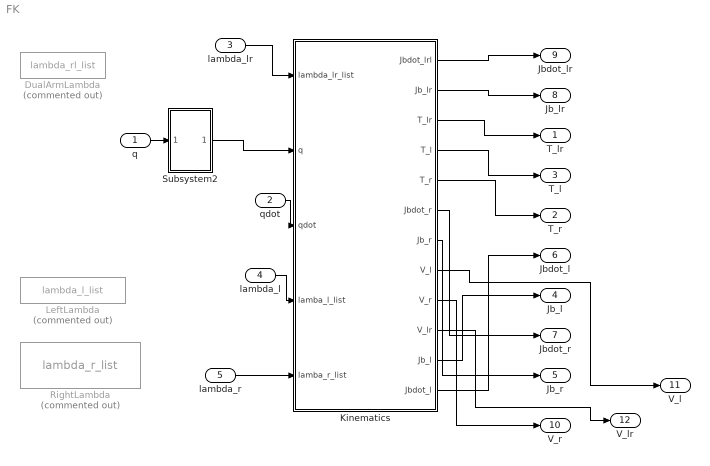
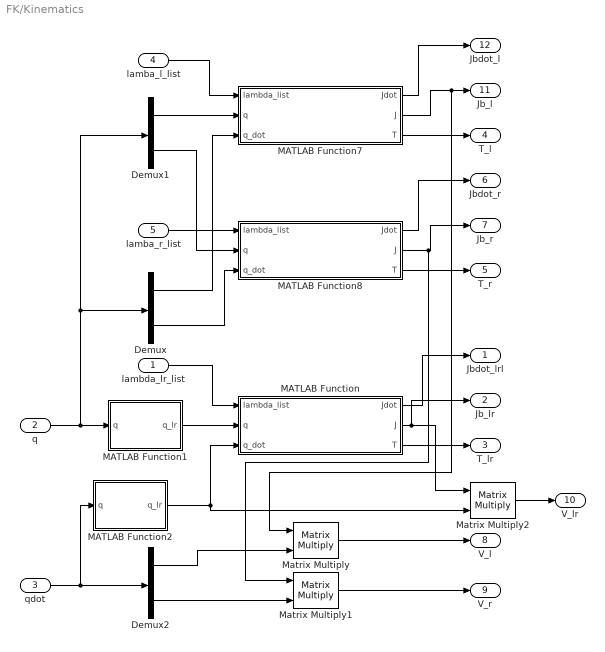
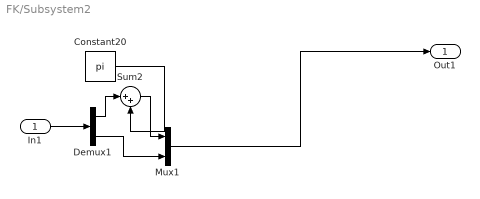
== matlab function FK/Kinematics/MATLAB Function1 ==
function q_lr = getQrel(q)
q_lr = zeros(12,1);
q_lr = [-flip(q(1:6));q(7:end)];

== matlab function FK/Kinematics/MATLAB Function ==
function [Jdot,J,T]=FKJacobian(lambda_list,q,q_dot)
    Ti = eye(4);
    [m,n]=size(lambda_list);
    lamda_z = [0,0,0,0,0,1]';
    ez = [0,0,1]';
    N = length(q);
    J = zeros(6,N);
    Jdot=zeros(6,N);
  
    Ti = exp6(lambda_list(:,end));
    [Ri,pi] = TransToRp(Ti);
    J(:,end)=[Ri'*VecToso3(ez)*pi;Ri'*ez];
    for i =N:-1:1
        Ti = exp6(lambda_list(:,i))*exp6(lamda_z*q(i))*Ti;
 
        [Ri,pi] = TransToRp(Ti);
        if i>1
            J(:,i-1)=[Ri'*VecToso3(ez)*pi;Ri'*ez];
        end

    end
    for i=1:1:N
        Ji = J(:,i);
        dJidt = zeros(6,1);
        for j=1:1:N
            Jj = J(:,j);
            aJiaqj = zeros(6,1);
            if(i<j) 
                aJiaqj = ad(Ji)*Jj;
            end
            dJidt = dJidt+aJiaqj*q_dot(j);
        end
        Jdot(:,i) = dJidt;
    end
    T = Ti;
end

== matlab function FK/Kinematics/MATLAB Function2 ==
function q_lr = getQrel(q)
q_lr = zeros(12,1);
q_lr = [-flip(q(1:6));q(7:end)];

== matlab function FK/Kinematics/MATLAB Function7 ==
function [Jdot,J,T]=FKJacobian(lambda_list,q,q_dot)
    Ti = eye(4);
    [m,n]=size(lambda_list);
    lamda_z = [0,0,0,0,0,1]';
    ez = [0,0,1]';
    N = length(q);
    J = zeros(6,N);
    Jdot=zeros(6,N);
  
    Ti = exp6(lambda_list(:,end));
    [Ri,pi] = TransToRp(Ti);
    J(:,end)=[Ri'*VecToso3(ez)*pi;Ri'*ez];
    for i =N:-1:1
        Ti = exp6(lambda_list(:,i))*exp6(lamda_z*q(i))*Ti;
 
        [Ri,pi] = TransToRp(Ti);
        if i>1
            J(:,i-1)=[Ri'*VecToso3(ez)*pi;Ri'*ez];
        end

    end
    for i=1:1:N
        Ji = J(:,i);
        dJidt = zeros(6,1);
        for j=1:1:N
            Jj = J(:,j);
            aJiaqj = zeros(6,1);
            if(i<j) 
                aJiaqj = ad(Ji)*Jj;
            end
            dJidt = dJidt+aJiaqj*q_dot(j);
        end
        Jdot(:,i) = dJidt;
    end
    T = Ti;
end

== matlab function FK/Kinematics/MATLAB Function8 ==
function [Jdot,J,T]=FKJacobian(lambda_list,q,q_dot)
    Ti = eye(4);
    [m,n]=size(lambda_list);
    lamda_z = [0,0,0,0,0,1]';
    ez = [0,0,1]';
    N = length(q);
    J = zeros(6,N);
    Jdot=zeros(6,N);
  
    Ti = exp6(lambda_list(:,end));
    [Ri,pi] = TransToRp(Ti);
    J(:,end)=[Ri'*VecToso3(ez)*pi;Ri'*ez];
    for i =N:-1:1
        Ti = exp6(lambda_list(:,i))*exp6(lamda_z*q(i))*Ti;
 
        [Ri,pi] = TransToRp(Ti);
        if i>1
            J(:,i-1)=[Ri'*VecToso3(ez)*pi;Ri'*ez];
        end

    end
    for i=1:1:N
        Ji = J(:,i);
        dJidt = zeros(6,1);
        for j=1:1:N
            Jj = J(:,j);
            aJiaqj = zeros(6,1);
            if(i<j) 
                aJiaqj = ad(Ji)*Jj;
            end
            dJidt = dJidt+aJiaqj*q_dot(j);
        end
        Jdot(:,i) = dJidt;
    end
    T = Ti;
end

/*
 * FK.c
 *
 * Academic License - for use in teaching, academic research, and meeting
 * course requirements at degree granting institutions only.  Not for
 * government, commercial, or other organizational use.
 *
 * Code generation for model "FK".
 *
 * Model version              : 2.4
 * Simulink Coder version : 24.2 (R2024b) 21-Jun-2024
 * C source code generated on : Sat May  3 16:25:47 2025
 *
 * Target selection: grt.tlc
 * Note: GRT includes extra infrastructure and instrumentation for prototyping
 * Embedded hardware selection: Intel->x86-64 (Linux 64)
 * Code generation objectives: Unspecified
 * Validation result: Not run
 */

#include "FK.h"
#include "rtwtypes.h"
#include <string.h>
#include <emmintrin.h>
#include "FK_private.h"
#include <math.h>

/* External inputs (root inport signals with default storage) */
ExtU_FK_T FK_U;

/* External outputs (root outports fed by signals with default storage) */
ExtY_FK_T FK_Y;

/* Real-time model */
static RT_MODEL_FK_T FK_M_;
RT_MODEL_FK_T *const FK_M = &FK_M_;

/* Forward declaration for local functions */
static real_T FK_norm(const real_T x[3]);

/* Function for MATLAB Function: '<S1>/MATLAB Function' */
static real_T FK_norm(const real_T x[3])
{
  real_T absxk;
  real_T scale;
  real_T t;
  real_T y;
  scale = 3.3121686421112381E-170;
  absxk = fabs(x[0]);
  if (absxk > 3.3121686421112381E-170) {
    y = 1.0;
    scale = absxk;
  } else {
    t = absxk / 3.3121686421112381E-170;
    y = t * t;
  }

  absxk = fabs(x[1]);
  if (absxk > scale) {
    t = scale / absxk;
    y = y * t * t + 1.0;
    scale = absxk;
  } else {
    t = absxk / scale;
    y += t * t;
  }

  absxk = fabs(x[2]);
  if (absxk > scale) {
    t = scale / absxk;
    y = y * t * t + 1.0;
    scale = absxk;
  } else {
    t = absxk / scale;
    y += t * t;
  }

  return scale * sqrt(y);
}

/* Function for MATLAB Function: '<S1>/MATLAB Function7' */
void FK_exp6(const real_T lambda[6], real_T T[16])
{
  __m128d tmp;
  real_T se3mat[16];
  real_T R[9];
  real_T omgmat_tmp[9];
  real_T se3mat_0[3];
  real_T a_tmp;
  real_T b_a;
  real_T b_a_tmp;
  real_T theta;
  int32_T R_tmp;
  int32_T T_tmp;
  int32_T i;
  int8_T b_I[9];
  static const int8_T d_a[9] = { 1, 0, 0, 0, 1, 0, 0, 0, 1 };

  se3mat[0] = 0.0;
  se3mat[4] = -lambda[5];
  se3mat[8] = lambda[4];
  se3mat[1] = lambda[5];
  se3mat[5] = 0.0;
  se3mat[9] = -lambda[3];
  se3mat[2] = -lambda[4];
  se3mat[6] = lambda[3];
  se3mat[10] = 0.0;
  se3mat[12] = lambda[0];
  se3mat[13] = lambda[1];
  se3mat[14] = lambda[2];
  se3mat[3] = 0.0;
  se3mat[7] = 0.0;
  se3mat[11] = 0.0;
  se3mat[15] = 0.0;
  se3mat_0[0] = lambda[3];
  se3mat_0[1] = lambda[4];
  se3mat_0[2] = lambda[5];
  theta = FK_norm(se3mat_0);
  if (fabs(theta) < 2.2204460492503131E-16) {
    for (i = 0; i < 9; i++) {
      b_I[i] = 0;
    }

    b_I[0] = 1;
    b_I[4] = 1;
    b_I[8] = 1;
    for (i = 0; i < 3; i++) {
      T_tmp = i << 2;
      T[T_tmp] = b_I[3 * i];
      T[T_tmp + 1] = b_I[3 * i + 1];
      T[T_tmp + 2] = b_I[3 * i + 2];
      T[i + 12] = se3mat[i + 12];
    }

    T[3] = 0.0;
    T[7] = 0.0;
    T[11] = 0.0;
    T[15] = 1.0;
  } else {
    for (i = 0; i < 3; i++) {
      T_tmp = i << 2;
      tmp = _mm_div_pd(_mm_loadu_pd(&se3mat[T_tmp]), _mm_set1_pd(theta));
      _mm_storeu_pd(&omgmat_tmp[3 * i], tmp);
      omgmat_tmp[3 * i + 2] = se3mat[T_tmp + 2] / theta;
    }

    a_tmp = cos(theta);
    b_a_tmp = sin(theta);
    b_a = theta - b_a_tmp;
    for (i = 0; i < 9; i++) {
      b_I[i] = 0;
    }

    b_I[0] = 1;
    b_I[4] = 1;
    b_I[8] = 1;
    for (i = 0; i < 3; i++) {
      for (T_tmp = 0; T_tmp < 3; T_tmp++) {
        R_tmp = 3 * T_tmp + i;
        R[R_tmp] = (((1.0 - a_tmp) * omgmat_tmp[i] * omgmat_tmp[3 * T_tmp] +
                     (1.0 - a_tmp) * omgmat_tmp[i + 3] * omgmat_tmp[3 * T_tmp +
                     1]) + (1.0 - a_tmp) * omgmat_tmp[i + 6] * omgmat_tmp[3 *
                    T_tmp + 2]) + (omgmat_tmp[R_tmp] * b_a_tmp + (real_T)
          b_I[R_tmp]);
      }
    }

    for (i = 0; i < 3; i++) {
      b_a_tmp = 0.0;
      for (T_tmp = 0; T_tmp < 3; T_tmp++) {
        R_tmp = 3 * T_tmp + i;
        b_a_tmp += (((omgmat_tmp[i + 3] * b_a * omgmat_tmp[3 * T_tmp + 1] + b_a *
                      omgmat_tmp[i] * omgmat_tmp[3 * T_tmp]) + omgmat_tmp[i + 6]
                     * b_a * omgmat_tmp[3 * T_tmp + 2]) + ((1.0 - a_tmp) *
          omgmat_tmp[R_tmp] + (real_T)d_a[R_tmp] * theta)) * se3mat[T_tmp + 12];
        T[T_tmp + (i << 2)] = R[3 * i + T_tmp];
      }

      T[i + 12] = b_a_tmp / theta;
    }

    T[3] = 0.0;
    T[7] = 0.0;
    T[11] = 0.0;
    T[15] = 1.0;
  }
}

/* Model step function */
void FK_step(void)
{
  __m128d tmp_b;
  __m128d tmp_c;
  real_T rtb_J_m[72];
  real_T rtb_Jdot_f[72];
  real_T omgmat_0[36];
  real_T rtb_J[36];
  real_T rtb_J_h[36];
  real_T rtb_Jdot[36];
  real_T rtb_Jdot_l[36];
  real_T rtb_T_m[16];
  real_T tmp_2[16];
  real_T tmp_3[16];
  real_T tmp_4[16];
  real_T tmp_5[16];
  real_T rtb_TmpSignalConversionAtSFunct[12];
  real_T rtb_q_lr_h[12];
  real_T omgmat[9];
  real_T dJidt[6];
  real_T rtb_MatrixMultiply2[6];
  real_T x[6];
  real_T rtb_T_e[3];
  real_T tmp_d[2];
  real_T rtb_Sum2;
  real_T rtb_T_e_0;
  real_T tmp;
  real_T tmp_6;
  real_T tmp_7;
  int32_T i;
  int32_T i_0;
  int32_T k;
  int32_T rtb_T_e_tmp;
  int32_T tmp_e;
  int8_T tmp_0[9];
  int8_T tmp_1[3];
  int8_T tmp_8;
  int8_T tmp_9;
  int8_T tmp_a;
  static const int8_T y[9] = { 0, 1, 0, -1, 0, 0, 0, 0, 0 };

  static const int8_T b_y[3] = { 0, 0, 1 };

  static const int8_T c[6] = { 0, 0, 0, 0, 0, 1 };

  /* Sum: '<S2>/Sum2' incorporates:
   *  Constant: '<S2>/Constant20'
   *  Inport: '<Root>/q'
   */
  rtb_Sum2 = FK_U.q[0] + FK_P.Constant20_Value;

  /* SignalConversion generated from: '<S4>/ SFunction ' incorporates:
   *  Inport: '<Root>/q'
   *  MATLAB Function: '<S1>/MATLAB Function1'
   */
  rtb_TmpSignalConversionAtSFunct[0] = rtb_Sum2;
  memcpy(&rtb_TmpSignalConversionAtSFunct[1], &FK_U.q[1], 11U * sizeof(real_T));

  /* MATLAB Function: '<S1>/MATLAB Function1' */
  for (i = 0; i < 6; i++) {
    x[i] = rtb_TmpSignalConversionAtSFunct[i];
  }

  tmp = x[0];
  x[0] = x[5];
  x[5] = tmp;
  tmp = x[1];
  x[1] = x[4];
  x[4] = tmp;
  tmp = x[2];
  x[2] = x[3];
  x[3] = tmp;
  for (i = 0; i <= 4; i += 2) {
    tmp_c = _mm_loadu_pd(&x[i]);
    _mm_storeu_pd(&rtb_q_lr_h[i], _mm_mul_pd(tmp_c, _mm_set1_pd(-1.0)));
    tmp_c = _mm_loadu_pd(&rtb_TmpSignalConversionAtSFunct[i + 6]);
    _mm_storeu_pd(&rtb_q_lr_h[i + 6], tmp_c);

    /* MATLAB Function: '<S1>/MATLAB Function2' incorporates:
     *  Inport: '<Root>/qdot'
     */
    _mm_storeu_pd(&x[i], _mm_loadu_pd(&FK_U.qdot[i]));
  }

  /* MATLAB Function: '<S1>/MATLAB Function2' incorporates:
   *  Inport: '<Root>/qdot'
   */
  tmp = x[0];
  x[0] = x[5];
  x[5] = tmp;
  tmp = x[1];
  x[1] = x[4];
  x[4] = tmp;
  tmp = x[2];
  x[2] = x[3];
  x[3] = tmp;
  for (i = 0; i <= 4; i += 2) {
    tmp_c = _mm_loadu_pd(&x[i]);
    _mm_storeu_pd(&rtb_TmpSignalConversionAtSFunct[i], _mm_mul_pd(tmp_c,
      _mm_set1_pd(-1.0)));
    _mm_storeu_pd(&rtb_TmpSignalConversionAtSFunct[i + 6], _mm_loadu_pd
                  (&FK_U.qdot[i + 6]));
  }

  /* MATLAB Function: '<S1>/MATLAB Function' incorporates:
   *  Inport: '<Root>/lambda_lr'
   */
  memset(&rtb_J_m[0], 0, 72U * sizeof(real_T));
  FK_exp6(&FK_U.lambda_lr[72], rtb_T_m);
  for (i_0 = 0; i_0 < 9; i_0++) {
    /* MATLAB Function: '<S1>/MATLAB Function8' incorporates:
     *  MATLAB Function: '<S1>/MATLAB Function7'
     */
    tmp_0[i_0] = y[i_0];
  }

  for (i = 0; i < 3; i++) {
    /* MATLAB Function: '<S1>/MATLAB Function8' incorporates:
     *  MATLAB Function: '<S1>/MATLAB Function7'
     */
    tmp_1[i] = b_y[i];
    tmp = 0.0;
    for (i_0 = 0; i_0 < 3; i_0++) {
      rtb_T_e_tmp = i << 2;
      tmp += (((real_T)tmp_0[3 * i_0 + 1] * rtb_T_m[rtb_T_e_tmp + 1] + (real_T)
               tmp_0[3 * i_0] * rtb_T_m[rtb_T_e_tmp]) + (real_T)tmp_0[3 * i_0 +
              2] * rtb_T_m[rtb_T_e_tmp + 2]) * rtb_T_m[i_0 + 12];
    }

    rtb_T_e[i] = tmp;
  }

  tmp_8 = tmp_1[1];
  tmp_9 = tmp_1[0];
  tmp_a = tmp_1[2];
  for (i_0 = 0; i_0 < 3; i_0++) {
    rtb_J_m[i_0 + 66] = rtb_T_e[i_0];
    i = i_0 << 2;
    rtb_J_m[i_0 + 69] = (rtb_T_m[i + 1] * (real_T)tmp_8 + rtb_T_m[i] * (real_T)
                         tmp_9) + rtb_T_m[i + 2] * (real_T)tmp_a;
  }

  for (k = 0; k < 12; k++) {
    FK_exp6(&FK_U.lambda_lr[(11 - k) * 6], tmp_2);
    tmp = rtb_q_lr_h[11 - k];
    for (i_0 = 0; i_0 <= 4; i_0 += 2) {
      _mm_storeu_pd(&x[i_0], _mm_mul_pd(_mm_set_pd(c[i_0 + 1], c[i_0]),
        _mm_set1_pd(tmp)));
    }

    FK_exp6(x, tmp_3);
    for (i_0 = 0; i_0 < 4; i_0++) {
      tmp = tmp_2[i_0 + 4];
      rtb_T_e_0 = tmp_2[i_0];
      tmp_6 = tmp_2[i_0 + 8];
      tmp_7 = tmp_2[i_0 + 12];
      for (i = 0; i <= 2; i += 2) {
        rtb_T_e_tmp = (i + 1) << 2;
        tmp_e = i << 2;
        _mm_storeu_pd(&tmp_d[0], _mm_add_pd(_mm_add_pd(_mm_add_pd(_mm_mul_pd
          (_mm_set_pd(tmp_3[rtb_T_e_tmp + 1], tmp_3[tmp_e + 1]), _mm_set1_pd(tmp)),
          _mm_mul_pd(_mm_set_pd(tmp_3[rtb_T_e_tmp], tmp_3[tmp_e]), _mm_set1_pd
                     (rtb_T_e_0))), _mm_mul_pd(_mm_set_pd(tmp_3[rtb_T_e_tmp + 2],
          tmp_3[tmp_e + 2]), _mm_set1_pd(tmp_6))), _mm_mul_pd(_mm_set_pd
          (tmp_3[rtb_T_e_tmp + 3], tmp_3[tmp_e + 3]), _mm_set1_pd(tmp_7))));
        tmp_4[i_0 + tmp_e] = tmp_d[0];
        tmp_4[i_0 + rtb_T_e_tmp] = tmp_d[1];
      }

      tmp = tmp_4[i_0 + 4];
      rtb_T_e_0 = tmp_4[i_0];
      tmp_6 = tmp_4[i_0 + 8];
      tmp_7 = tmp_4[i_0 + 12];
      for (i = 0; i <= 2; i += 2) {
        rtb_T_e_tmp = (i + 1) << 2;
        tmp_e = i << 2;
        _mm_storeu_pd(&tmp_d[0], _mm_add_pd(_mm_add_pd(_mm_add_pd(_mm_mul_pd
          (_mm_set_pd(rtb_T_m[rtb_T_e_tmp + 1], rtb_T_m[tmp_e + 1]), _mm_set1_pd
           (tmp)), _mm_mul_pd(_mm_set_pd(rtb_T_m[rtb_T_e_tmp], rtb_T_m[tmp_e]),
                              _mm_set1_pd(rtb_T_e_0))), _mm_mul_pd(_mm_set_pd
          (rtb_T_m[rtb_T_e_tmp + 2], rtb_T_m[tmp_e + 2]), _mm_set1_pd(tmp_6))),
          _mm_mul_pd(_mm_set_pd(rtb_T_m[rtb_T_e_tmp + 3], rtb_T_m[tmp_e + 3]),
                     _mm_set1_pd(tmp_7))));
        tmp_5[i_0 + tmp_e] = tmp_d[0];
        tmp_5[i_0 + rtb_T_e_tmp] = tmp_d[1];
      }
    }

    memcpy(&rtb_T_m[0], &tmp_5[0], sizeof(real_T) << 4U);
    if (12 - k > 1) {
      for (i_0 = 0; i_0 < 3; i_0++) {
        tmp = 0.0;
        rtb_T_e_0 = 0.0;
        for (i = 0; i < 3; i++) {
          rtb_T_e_tmp = i_0 << 2;
          tmp += (((real_T)tmp_0[3 * i + 1] * rtb_T_m[rtb_T_e_tmp + 1] + (real_T)
                   tmp_0[3 * i] * rtb_T_m[rtb_T_e_tmp]) + (real_T)tmp_0[3 * i +
                  2] * rtb_T_m[rtb_T_e_tmp + 2]) * rtb_T_m[i + 12];
          rtb_T_e_0 += rtb_T_m[rtb_T_e_tmp + i] * (real_T)tmp_1[i];
        }

        i = (10 - k) * 6 + i_0;
        rtb_J_m[i] = tmp;
        rtb_J_m[i + 3] = rtb_T_e_0;
      }
    }
  }

  for (k = 0; k < 12; k++) {
    for (i = 0; i < 6; i++) {
      dJidt[i] = 0.0;
    }

    for (rtb_T_e_tmp = 0; rtb_T_e_tmp < 12; rtb_T_e_tmp++) {
      for (i = 0; i < 6; i++) {
        x[i] = 0.0;
      }

      if (k < rtb_T_e_tmp) {
        omgmat[0] = 0.0;
        tmp = rtb_J_m[6 * k + 5];
        omgmat[3] = -tmp;
        rtb_T_e_0 = rtb_J_m[6 * k + 4];
        omgmat[6] = rtb_T_e_0;
        omgmat[1] = tmp;
        omgmat[4] = 0.0;
        tmp = rtb_J_m[6 * k + 3];
        omgmat[7] = -tmp;
        omgmat[2] = -rtb_T_e_0;
        omgmat[5] = tmp;
        omgmat[8] = 0.0;
        omgmat_0[18] = 0.0;
        tmp = rtb_J_m[6 * k + 2];
        omgmat_0[24] = -tmp;
        rtb_T_e_0 = rtb_J_m[6 * k + 1];
        omgmat_0[30] = rtb_T_e_0;
        omgmat_0[19] = tmp;
        omgmat_0[25] = 0.0;
        tmp = rtb_J_m[6 * k];
        omgmat_0[31] = -tmp;
        omgmat_0[20] = -rtb_T_e_0;
        omgmat_0[26] = tmp;
        omgmat_0[32] = 0.0;
        for (i_0 = 0; i_0 < 3; i_0++) {
          tmp = omgmat[3 * i_0];
          omgmat_0[6 * i_0] = tmp;
          omgmat_0[6 * i_0 + 3] = 0.0;
          i = (i_0 + 3) * 6;
          omgmat_0[i + 3] = tmp;
          tmp = omgmat[3 * i_0 + 1];
          omgmat_0[6 * i_0 + 1] = tmp;
          omgmat_0[6 * i_0 + 4] = 0.0;
          omgmat_0[i + 4] = tmp;
          tmp = omgmat[3 * i_0 + 2];
          omgmat_0[6 * i_0 + 2] = tmp;
          omgmat_0[6 * i_0 + 5] = 0.0;
          omgmat_0[i + 5] = tmp;
        }

        for (i_0 = 0; i_0 < 6; i_0++) {
          tmp = 0.0;
          for (i = 0; i < 6; i++) {
            tmp += omgmat_0[6 * i + i_0] * rtb_J_m[6 * rtb_T_e_tmp + i];
          }

          x[i_0] = tmp;
        }
      }

      tmp = rtb_TmpSignalConversionAtSFunct[rtb_T_e_tmp];
      for (i_0 = 0; i_0 <= 4; i_0 += 2) {
        tmp_c = _mm_loadu_pd(&x[i_0]);
        tmp_b = _mm_loadu_pd(&dJidt[i_0]);
        _mm_storeu_pd(&dJidt[i_0], _mm_add_pd(_mm_mul_pd(tmp_c, _mm_set1_pd(tmp)),
          tmp_b));
      }
    }

    for (i_0 = 0; i_0 < 6; i_0++) {
      rtb_Jdot_f[i_0 + 6 * k] = dJidt[i_0];
    }
  }

  /* End of MATLAB Function: '<S1>/MATLAB Function' */

  /* Outport: '<Root>/T_lr' */
  memcpy(&FK_Y.T_lr[0], &rtb_T_m[0], sizeof(real_T) << 4U);

  /* MATLAB Function: '<S1>/MATLAB Function8' incorporates:
   *  Inport: '<Root>/lambda_r'
   *  Inport: '<Root>/q'
   */
  memset(&rtb_J[0], 0, 36U * sizeof(real_T));
  FK_exp6(&FK_U.lambda_r[36], rtb_T_m);
  for (i_0 = 0; i_0 < 3; i_0++) {
    tmp = 0.0;
    rtb_T_e_0 = 0.0;
    for (i = 0; i < 3; i++) {
      rtb_T_e_tmp = i_0 << 2;
      tmp += (((real_T)tmp_0[3 * i + 1] * rtb_T_m[rtb_T_e_tmp + 1] + (real_T)
               tmp_0[3 * i] * rtb_T_m[rtb_T_e_tmp]) + (real_T)tmp_0[3 * i + 2] *
              rtb_T_m[rtb_T_e_tmp + 2]) * rtb_T_m[i + 12];
      rtb_T_e_0 += rtb_T_m[rtb_T_e_tmp + i] * (real_T)tmp_1[i];
    }

    rtb_J[i_0 + 30] = tmp;
    rtb_J[i_0 + 33] = rtb_T_e_0;
  }

  for (k = 0; k < 6; k++) {
    FK_exp6(&FK_U.lambda_r[(5 - k) * 6], tmp_2);
    tmp = FK_U.q[11 - k];
    for (i_0 = 0; i_0 <= 4; i_0 += 2) {
      _mm_storeu_pd(&x[i_0], _mm_mul_pd(_mm_set_pd(c[i_0 + 1], c[i_0]),
        _mm_set1_pd(tmp)));
    }

    FK_exp6(x, tmp_3);
    for (i_0 = 0; i_0 < 4; i_0++) {
      tmp = tmp_2[i_0 + 4];
      rtb_T_e_0 = tmp_2[i_0];
      tmp_6 = tmp_2[i_0 + 8];
      tmp_7 = tmp_2[i_0 + 12];
      for (i = 0; i <= 2; i += 2) {
        rtb_T_e_tmp = (i + 1) << 2;
        tmp_e = i << 2;
        _mm_storeu_pd(&tmp_d[0], _mm_add_pd(_mm_add_pd(_mm_add_pd(_mm_mul_pd
          (_mm_set_pd(tmp_3[rtb_T_e_tmp + 1], tmp_3[tmp_e + 1]), _mm_set1_pd(tmp)),
          _mm_mul_pd(_mm_set_pd(tmp_3[rtb_T_e_tmp], tmp_3[tmp_e]), _mm_set1_pd
                     (rtb_T_e_0))), _mm_mul_pd(_mm_set_pd(tmp_3[rtb_T_e_tmp + 2],
          tmp_3[tmp_e + 2]), _mm_set1_pd(tmp_6))), _mm_mul_pd(_mm_set_pd
          (tmp_3[rtb_T_e_tmp + 3], tmp_3[tmp_e + 3]), _mm_set1_pd(tmp_7))));
        tmp_4[i_0 + tmp_e] = tmp_d[0];
        tmp_4[i_0 + rtb_T_e_tmp] = tmp_d[1];
      }

      tmp = tmp_4[i_0 + 4];
      rtb_T_e_0 = tmp_4[i_0];
      tmp_6 = tmp_4[i_0 + 8];
      tmp_7 = tmp_4[i_0 + 12];
      for (i = 0; i <= 2; i += 2) {
        rtb_T_e_tmp = (i + 1) << 2;
        tmp_e = i << 2;
        _mm_storeu_pd(&tmp_d[0], _mm_add_pd(_mm_add_pd(_mm_add_pd(_mm_mul_pd
          (_mm_set_pd(rtb_T_m[rtb_T_e_tmp + 1], rtb_T_m[tmp_e + 1]), _mm_set1_pd
           (tmp)), _mm_mul_pd(_mm_set_pd(rtb_T_m[rtb_T_e_tmp], rtb_T_m[tmp_e]),
                              _mm_set1_pd(rtb_T_e_0))), _mm_mul_pd(_mm_set_pd
          (rtb_T_m[rtb_T_e_tmp + 2], rtb_T_m[tmp_e + 2]), _mm_set1_pd(tmp_6))),
          _mm_mul_pd(_mm_set_pd(rtb_T_m[rtb_T_e_tmp + 3], rtb_T_m[tmp_e + 3]),
                     _mm_set1_pd(tmp_7))));
        tmp_5[i_0 + tmp_e] = tmp_d[0];
        tmp_5[i_0 + rtb_T_e_tmp] = tmp_d[1];
      }
    }

    memcpy(&rtb_T_m[0], &tmp_5[0], sizeof(real_T) << 4U);
    if (6 - k > 1) {
      for (i_0 = 0; i_0 < 3; i_0++) {
        tmp = 0.0;
        rtb_T_e_0 = 0.0;
        for (i = 0; i < 3; i++) {
          rtb_T_e_tmp = i_0 << 2;
          tmp += (((real_T)tmp_0[3 * i + 1] * rtb_T_m[rtb_T_e_tmp + 1] + (real_T)
                   tmp_0[3 * i] * rtb_T_m[rtb_T_e_tmp]) + (real_T)tmp_0[3 * i +
                  2] * rtb_T_m[rtb_T_e_tmp + 2]) * rtb_T_m[i + 12];
          rtb_T_e_0 += rtb_T_m[rtb_T_e_tmp + i] * (real_T)tmp_1[i];
        }

        i = (4 - k) * 6 + i_0;
        rtb_J[i] = tmp;
        rtb_J[i + 3] = rtb_T_e_0;
      }
    }
  }

  for (k = 0; k < 6; k++) {
    for (i = 0; i < 6; i++) {
      dJidt[i] = 0.0;
    }

    for (rtb_T_e_tmp = 0; rtb_T_e_tmp < 6; rtb_T_e_tmp++) {
      for (i = 0; i < 6; i++) {
        x[i] = 0.0;
      }

      if (k < rtb_T_e_tmp) {
        omgmat[0] = 0.0;
        tmp = rtb_J[6 * k + 5];
        omgmat[3] = -tmp;
        rtb_T_e_0 = rtb_J[6 * k + 4];
        omgmat[6] = rtb_T_e_0;
        omgmat[1] = tmp;
        omgmat[4] = 0.0;
        tmp = rtb_J[6 * k + 3];
        omgmat[7] = -tmp;
        omgmat[2] = -rtb_T_e_0;
        omgmat[5] = tmp;
        omgmat[8] = 0.0;
        omgmat_0[18] = 0.0;
        tmp = rtb_J[6 * k + 2];
        omgmat_0[24] = -tmp;
        rtb_T_e_0 = rtb_J[6 * k + 1];
        omgmat_0[30] = rtb_T_e_0;
        omgmat_0[19] = tmp;
        omgmat_0[25] = 0.0;
        tmp = rtb_J[6 * k];
        omgmat_0[31] = -tmp;
        omgmat_0[20] = -rtb_T_e_0;
        omgmat_0[26] = tmp;
        omgmat_0[32] = 0.0;
        for (i_0 = 0; i_0 < 3; i_0++) {
          tmp = omgmat[3 * i_0];
          omgmat_0[6 * i_0] = tmp;
          omgmat_0[6 * i_0 + 3] = 0.0;
          i = (i_0 + 3) * 6;
          omgmat_0[i + 3] = tmp;
          tmp = omgmat[3 * i_0 + 1];
          omgmat_0[6 * i_0 + 1] = tmp;
          omgmat_0[6 * i_0 + 4] = 0.0;
          omgmat_0[i + 4] = tmp;
          tmp = omgmat[3 * i_0 + 2];
          omgmat_0[6 * i_0 + 2] = tmp;
          omgmat_0[6 * i_0 + 5] = 0.0;
          omgmat_0[i + 5] = tmp;
        }

        for (i_0 = 0; i_0 < 6; i_0++) {
          tmp = 0.0;
          for (i = 0; i < 6; i++) {
            tmp += omgmat_0[6 * i + i_0] * rtb_J[6 * rtb_T_e_tmp + i];
          }

          x[i_0] = tmp;
        }
      }

      tmp = FK_U.q[rtb_T_e_tmp + 6];
      for (i_0 = 0; i_0 <= 4; i_0 += 2) {
        tmp_c = _mm_loadu_pd(&x[i_0]);
        tmp_b = _mm_loadu_pd(&dJidt[i_0]);
        _mm_storeu_pd(&dJidt[i_0], _mm_add_pd(_mm_mul_pd(tmp_c, _mm_set1_pd(tmp)),
          tmp_b));
      }
    }

    for (i_0 = 0; i_0 < 6; i_0++) {
      rtb_Jdot[i_0 + 6 * k] = dJidt[i_0];
    }
  }

  /* Outport: '<Root>/T_r' */
  memcpy(&FK_Y.T_r[0], &rtb_T_m[0], sizeof(real_T) << 4U);

  /* SignalConversion generated from: '<S6>/ SFunction ' incorporates:
   *  Inport: '<Root>/q'
   *  MATLAB Function: '<S1>/MATLAB Function7'
   */
  rtb_MatrixMultiply2[0] = rtb_Sum2;
  for (i = 0; i < 5; i++) {
    rtb_MatrixMultiply2[i + 1] = FK_U.q[i + 1];
  }

  /* End of SignalConversion generated from: '<S6>/ SFunction ' */

  /* MATLAB Function: '<S1>/MATLAB Function7' incorporates:
   *  Inport: '<Root>/lambda_l'
   *  MATLAB Function: '<S1>/MATLAB Function8'
   */
  memset(&rtb_J_h[0], 0, 36U * sizeof(real_T));
  FK_exp6(&FK_U.lambda_l[36], rtb_T_m);
  for (i_0 = 0; i_0 < 3; i_0++) {
    tmp = 0.0;
    rtb_T_e_0 = 0.0;
    for (i = 0; i < 3; i++) {
      rtb_T_e_tmp = i_0 << 2;
      tmp += (((real_T)tmp_0[3 * i + 1] * rtb_T_m[rtb_T_e_tmp + 1] + (real_T)
               tmp_0[3 * i] * rtb_T_m[rtb_T_e_tmp]) + (real_T)tmp_0[3 * i + 2] *
              rtb_T_m[rtb_T_e_tmp + 2]) * rtb_T_m[i + 12];
      rtb_T_e_0 += rtb_T_m[rtb_T_e_tmp + i] * (real_T)tmp_1[i];
    }

    rtb_J_h[i_0 + 30] = tmp;
    rtb_J_h[i_0 + 33] = rtb_T_e_0;
  }

  for (k = 0; k < 6; k++) {
    FK_exp6(&FK_U.lambda_l[(5 - k) * 6], tmp_2);
    rtb_Sum2 = rtb_MatrixMultiply2[5 - k];
    for (i_0 = 0; i_0 <= 4; i_0 += 2) {
      _mm_storeu_pd(&x[i_0], _mm_mul_pd(_mm_set_pd(c[i_0 + 1], c[i_0]),
        _mm_set1_pd(rtb_Sum2)));
    }

    FK_exp6(x, tmp_3);
    for (i_0 = 0; i_0 < 4; i_0++) {
      tmp = tmp_2[i_0 + 4];
      rtb_T_e_0 = tmp_2[i_0];
      tmp_6 = tmp_2[i_0 + 8];
      tmp_7 = tmp_2[i_0 + 12];
      for (i = 0; i <= 2; i += 2) {
        rtb_T_e_tmp = (i + 1) << 2;
        tmp_e = i << 2;
        _mm_storeu_pd(&tmp_d[0], _mm_add_pd(_mm_add_pd(_mm_add_pd(_mm_mul_pd
          (_mm_set_pd(tmp_3[rtb_T_e_tmp + 1], tmp_3[tmp_e + 1]), _mm_set1_pd(tmp)),
          _mm_mul_pd(_mm_set_pd(tmp_3[rtb_T_e_tmp], tmp_3[tmp_e]), _mm_set1_pd
                     (rtb_T_e_0))), _mm_mul_pd(_mm_set_pd(tmp_3[rtb_T_e_tmp + 2],
          tmp_3[tmp_e + 2]), _mm_set1_pd(tmp_6))), _mm_mul_pd(_mm_set_pd
          (tmp_3[rtb_T_e_tmp + 3], tmp_3[tmp_e + 3]), _mm_set1_pd(tmp_7))));
        tmp_4[i_0 + tmp_e] = tmp_d[0];
        tmp_4[i_0 + rtb_T_e_tmp] = tmp_d[1];
      }

      tmp = tmp_4[i_0 + 4];
      rtb_T_e_0 = tmp_4[i_0];
      tmp_6 = tmp_4[i_0 + 8];
      tmp_7 = tmp_4[i_0 + 12];
      for (i = 0; i <= 2; i += 2) {
        rtb_T_e_tmp = (i + 1) << 2;
        tmp_e = i << 2;
        _mm_storeu_pd(&tmp_d[0], _mm_add_pd(_mm_add_pd(_mm_add_pd(_mm_mul_pd
          (_mm_set_pd(rtb_T_m[rtb_T_e_tmp + 1], rtb_T_m[tmp_e + 1]), _mm_set1_pd
           (tmp)), _mm_mul_pd(_mm_set_pd(rtb_T_m[rtb_T_e_tmp], rtb_T_m[tmp_e]),
                              _mm_set1_pd(rtb_T_e_0))), _mm_mul_pd(_mm_set_pd
          (rtb_T_m[rtb_T_e_tmp + 2], rtb_T_m[tmp_e + 2]), _mm_set1_pd(tmp_6))),
          _mm_mul_pd(_mm_set_pd(rtb_T_m[rtb_T_e_tmp + 3], rtb_T_m[tmp_e + 3]),
                     _mm_set1_pd(tmp_7))));
        tmp_5[i_0 + tmp_e] = tmp_d[0];
        tmp_5[i_0 + rtb_T_e_tmp] = tmp_d[1];
      }
    }

    memcpy(&rtb_T_m[0], &tmp_5[0], sizeof(real_T) << 4U);
    if (6 - k > 1) {
      for (i_0 = 0; i_0 < 3; i_0++) {
        tmp = 0.0;
        rtb_T_e_0 = 0.0;
        for (i = 0; i < 3; i++) {
          rtb_T_e_tmp = i_0 << 2;
          tmp += (((real_T)tmp_0[3 * i + 1] * rtb_T_m[rtb_T_e_tmp + 1] + (real_T)
                   tmp_0[3 * i] * rtb_T_m[rtb_T_e_tmp]) + (real_T)tmp_0[3 * i +
                  2] * rtb_T_m[rtb_T_e_tmp + 2]) * rtb_T_m[i + 12];
          rtb_T_e_0 += rtb_T_m[rtb_T_e_tmp + i] * (real_T)tmp_1[i];
        }

        i = (4 - k) * 6 + i_0;
        rtb_J_h[i] = tmp;
        rtb_J_h[i + 3] = rtb_T_e_0;
      }
    }
  }

  for (k = 0; k < 6; k++) {
    for (i = 0; i < 6; i++) {
      dJidt[i] = 0.0;
    }

    for (rtb_T_e_tmp = 0; rtb_T_e_tmp < 6; rtb_T_e_tmp++) {
      for (i = 0; i < 6; i++) {
        x[i] = 0.0;
      }

      if (k < rtb_T_e_tmp) {
        omgmat[0] = 0.0;
        rtb_Sum2 = rtb_J_h[6 * k + 5];
        omgmat[3] = -rtb_Sum2;
        tmp = rtb_J_h[6 * k + 4];
        omgmat[6] = tmp;
        omgmat[1] = rtb_Sum2;
        omgmat[4] = 0.0;
        rtb_Sum2 = rtb_J_h[6 * k + 3];
        omgmat[7] = -rtb_Sum2;
        omgmat[2] = -tmp;
        omgmat[5] = rtb_Sum2;
        omgmat[8] = 0.0;
        omgmat_0[18] = 0.0;
        rtb_Sum2 = rtb_J_h[6 * k + 2];
        omgmat_0[24] = -rtb_Sum2;
        tmp = rtb_J_h[6 * k + 1];
        omgmat_0[30] = tmp;
        omgmat_0[19] = rtb_Sum2;
        omgmat_0[25] = 0.0;
        rtb_Sum2 = rtb_J_h[6 * k];
        omgmat_0[31] = -rtb_Sum2;
        omgmat_0[20] = -tmp;
        omgmat_0[26] = rtb_Sum2;
        omgmat_0[32] = 0.0;
        for (i_0 = 0; i_0 < 3; i_0++) {
          tmp = omgmat[3 * i_0];
          omgmat_0[6 * i_0] = tmp;
          omgmat_0[6 * i_0 + 3] = 0.0;
          i = (i_0 + 3) * 6;
          omgmat_0[i + 3] = tmp;
          tmp = omgmat[3 * i_0 + 1];
          omgmat_0[6 * i_0 + 1] = tmp;
          omgmat_0[6 * i_0 + 4] = 0.0;
          omgmat_0[i + 4] = tmp;
          tmp = omgmat[3 * i_0 + 2];
          omgmat_0[6 * i_0 + 2] = tmp;
          omgmat_0[6 * i_0 + 5] = 0.0;
          omgmat_0[i + 5] = tmp;
        }

        for (i_0 = 0; i_0 < 6; i_0++) {
          tmp = 0.0;
          for (i = 0; i < 6; i++) {
            tmp += omgmat_0[6 * i + i_0] * rtb_J_h[6 * rtb_T_e_tmp + i];
          }

          x[i_0] = tmp;
        }
      }

      rtb_Sum2 = rtb_MatrixMultiply2[rtb_T_e_tmp];
      for (i_0 = 0; i_0 <= 4; i_0 += 2) {
        tmp_c = _mm_loadu_pd(&x[i_0]);
        tmp_b = _mm_loadu_pd(&dJidt[i_0]);
        _mm_storeu_pd(&dJidt[i_0], _mm_add_pd(_mm_mul_pd(tmp_c, _mm_set1_pd
          (rtb_Sum2)), tmp_b));
      }
    }

    for (i_0 = 0; i_0 < 6; i_0++) {
      rtb_Jdot_l[i_0 + 6 * k] = dJidt[i_0];
    }
  }

  /* Outport: '<Root>/T_l' */
  memcpy(&FK_Y.T_l[0], &rtb_T_m[0], sizeof(real_T) << 4U);

  /* Outport: '<Root>/Jb_l' */
  memcpy(&FK_Y.Jb_l[0], &rtb_J_h[0], 36U * sizeof(real_T));

  /* Outport: '<Root>/Jb_r' */
  memcpy(&FK_Y.Jb_r[0], &rtb_J[0], 36U * sizeof(real_T));

  /* Outport: '<Root>/Jbdot_l' */
  memcpy(&FK_Y.Jbdot_l[0], &rtb_Jdot_l[0], 36U * sizeof(real_T));

  /* Outport: '<Root>/Jbdot_r' */
  memcpy(&FK_Y.Jbdot_r[0], &rtb_Jdot[0], 36U * sizeof(real_T));

  /* Outport: '<Root>/Jb_lr' */
  memcpy(&FK_Y.Jb_lr[0], &rtb_J_m[0], 72U * sizeof(real_T));

  /* Outport: '<Root>/Jbdot_lr' */
  memcpy(&FK_Y.Jbdot_lr[0], &rtb_Jdot_f[0], 72U * sizeof(real_T));
  for (i_0 = 0; i_0 < 6; i_0++) {
    /* Outport: '<Root>/V_r' incorporates:
     *  Product: '<S1>/Matrix Multiply1'
     */
    rtb_Sum2 = 0.0;

    /* Outport: '<Root>/V_l' incorporates:
     *  Product: '<S1>/Matrix Multiply'
     */
    tmp = 0.0;
    for (i = 0; i < 6; i++) {
      /* Product: '<S1>/Matrix Multiply' incorporates:
       *  Inport: '<Root>/qdot'
       *  Outport: '<Root>/V_l'
       *  Outport: '<Root>/V_r'
       *  Product: '<S1>/Matrix Multiply1'
       */
      rtb_T_e_tmp = 6 * i + i_0;
      _mm_storeu_pd(&tmp_d[0], _mm_add_pd(_mm_mul_pd(_mm_set_pd
        (rtb_J_h[rtb_T_e_tmp], rtb_J[rtb_T_e_tmp]), _mm_set_pd(FK_U.qdot[i],
        FK_U.qdot[i + 6])), _mm_set_pd(tmp, rtb_Sum2)));

      /* Outport: '<Root>/V_r' incorporates:
       *  Product: '<S1>/Matrix Multiply1'
       */
      rtb_Sum2 = tmp_d[0];

      /* Outport: '<Root>/V_l' incorporates:
       *  Product: '<S1>/Matrix Multiply'
       */
      tmp = tmp_d[1];
    }

    /* Outport: '<Root>/V_l' incorporates:
     *  Product: '<S1>/Matrix Multiply'
     */
    FK_Y.V_l[i_0] = tmp;

    /* Outport: '<Root>/V_r' incorporates:
     *  Product: '<S1>/Matrix Multiply1'
     */
    FK_Y.V_r[i_0] = rtb_Sum2;

    /* Product: '<S1>/Matrix Multiply2' incorporates:
     *  Outport: '<Root>/V_lr'
     */
    rtb_Sum2 = 0.0;

    /* Outport: '<Root>/V_lr' incorporates:
     *  Product: '<S1>/Matrix Multiply2'
     */
    for (i = 0; i < 12; i++) {
      rtb_Sum2 += rtb_J_m[6 * i + i_0] * rtb_TmpSignalConversionAtSFunct[i];
    }

    FK_Y.V_lr[i_0] = rtb_Sum2;
  }

  /* Matfile logging */
  rt_UpdateTXYLogVars(FK_M->rtwLogInfo, (&FK_M->Timing.taskTime0));

  /* signal main to stop simulation */
  {                                    /* Sample time: [0.001s, 0.0s] */
    if ((rtmGetTFinal(FK_M)!=-1) &&
        !((rtmGetTFinal(FK_M)-FK_M->Timing.taskTime0) > FK_M->Timing.taskTime0 *
          (DBL_EPSILON))) {
      rtmSetErrorStatus(FK_M, "Simulation finished");
    }
  }

  /* Update absolute time for base rate */
  /* The "clockTick0" counts the number of times the code of this task has
   * been executed. The absolute time is the multiplication of "clockTick0"
   * and "Timing.stepSize0". Size of "clockTick0" ensures timer will not
   * overflow during the application lifespan selected.
   * Timer of this task consists of two 32 bit unsigned integers.
   * The two integers represent the low bits Timing.clockTick0 and the high bits
   * Timing.clockTickH0. When the low bit overflows to 0, the high bits increment.
   */
  if (!(++FK_M->Timing.clockTick0)) {
    ++FK_M->Timing.clockTickH0;
  }

  FK_M->Timing.taskTime0 = FK_M->Timing.clockTick0 * FK_M->Timing.stepSize0 +
    FK_M->Timing.clockTickH0 * FK_M->Timing.stepSize0 * 4294967296.0;
}
